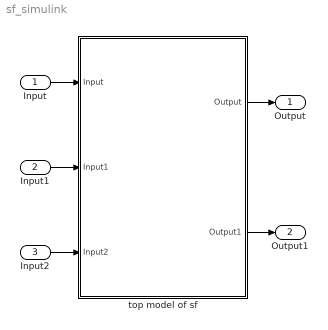
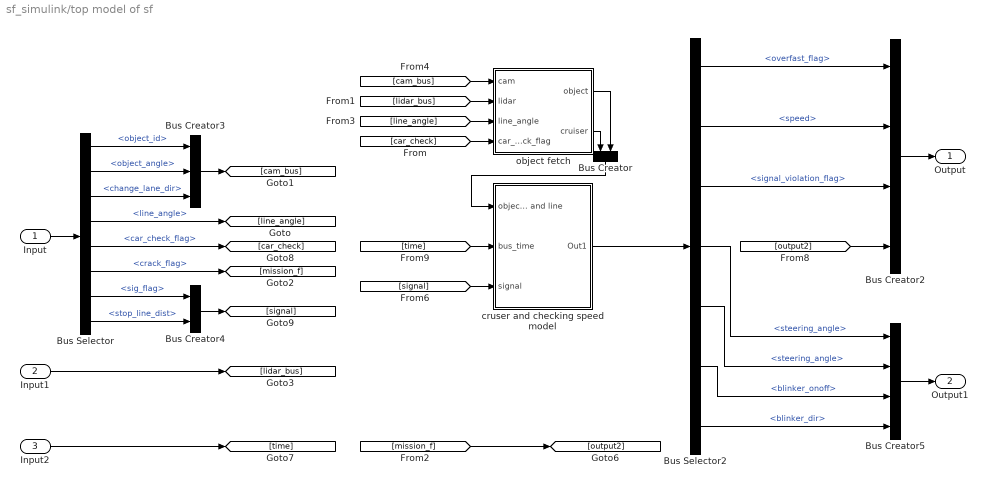
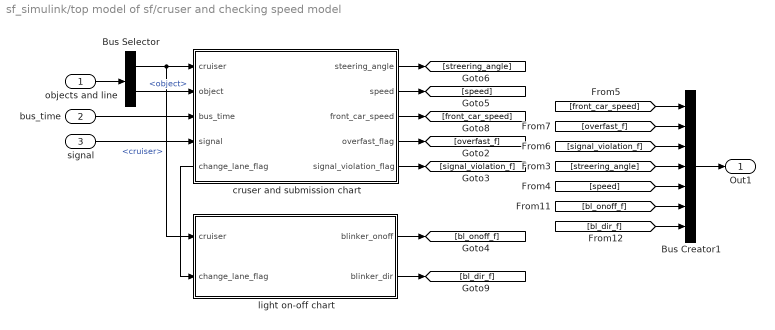
== stateflow chart sf_simulink/top model of sf/object fetch ==
  state cnt = up_count(cnt, limit) [function]
    (default) -> (junction 136)
    (junction 136) -> (junction 125) [order 1] : [cnt < limit] {cnt = cnt + 1;}
    (junction 131) -> (junction 125)
    (junction 125) -> (junction 133)
    (junction 136) -> (junction 131) [order 2]
  state init
    local_angle_cam = -1;
    local_angle_lidar = -1;
  state running
  (default) -> init
  init -> running
  (junction 99) -> running
  (junction 95) -> (junction 99)
  running -> (junction 180) : /* local data qsort */ { local_angle_cam = qsort(cam.object_angle); local_angle_lidar = qsort(lidar.angle); }
  (junction 180) -> (junction 37) : {i = 0; c = 0; l = 0;}
  (junction 227) -> (junction 36) [order 2]
  (junction 36) -> (junction 105) [order 1] : /* each data is bigger than zero, the absolute value of diff between local angles is smaller than three. !!! used data is set minus one !!!  data is existed, what... */ [ local_angle_cam[c] >= 0 && local_angle_lidar[l] >= 0 && ... abs(local_angle_cam[c] - i) < DIFF_ANGLE && ... abs(local_angle_lidar[l] - i) < DIFF_ANGLE && ... (local_angle_cam[c] + local_angle_lidar[l]) / 2 == i ]
  (junction 37) -> (junction 227) [order 1] : [i < 360]
  (junction 227) -> (junction 232) [order 1] : [c >= 10 && l >= 10]
  (junction 36) -> (junction 196) [order 2]
  (junction 105) -> (junction 143) : { each_object.who = 3; each_object.id = search(cam.object_angle, cam.object_id, local_angle_cam[c]); each_object.dist = search(lidar.angle, lidar.dist, local_angle_lidar[l]); object[i] = each_object;  c = up_count(c, 10); l = up_count(l, 10); }
  (junction 39) -> (junction 37)
  (junction 37) -> (junction 40) [order 2] : /* data fetch*/ { cruiser.line_angle = line_angle; cruiser.car_check_flag = car_check_flag; cruiser.change_lane_dir = cam.change_lane_dir; }
  (junction 196) -> (junction 241) [order 1] : [local_angle_cam[c] < i - DIFF_ANGLE && local_angle_cam[c] >= 0] {c = up_count(c, 10);}
  (junction 196) -> (junction 239) [order 2]
  (junction 241) -> (junction 203)
  (junction 203) -> (junction 239)
  (junction 239) -> (junction 207)
  (junction 207) -> (junction 236) [order 1] : [local_angle_lidar[l] < i - DIFF_ANGLE && local_angle_lidar[l] >= 0] {l = up_count(l, 10);}
  (junction 207) -> (junction 232) [order 2]
  (junction 236) -> (junction 205)
  (junction 205) -> (junction 232)
  (junction 232) -> (junction 38) : { each_object.who = 0; each_object.id = 0; each_object.dist = 0; object[i] = each_object; }
  (junction 40) -> (junction 95)
  (junction 38) -> (junction 39) : {i = i + 1;}
  (junction 143) -> (junction 38)
  data: cnt function_input double; limit function_input double; cnt function_output double; x function_input double; y function_output double; x function_input double; y function_input double; ret function_output double; val function_input double; cam input Bus: C_BUS; lidar input Bus: LIDAR; cruiser output Bus: CRUISER; line_angle input; local_angle_cam local double; local_angle_lidar local double; car_check_flag input; c local int8; l local int8; i local int16; object output Bus: OBJECT; each_object local Bus: OBJECT; DIFF_ANGLE constant double =3
  function y = qsort(x):
    | function y = qsort(x)
    | input = zeros(1,10);
    | for n = 1:10
    |     input(n) = x(n);
    | end
    | input = sort(input);
    | for n = 1:10
    |     y(n) = input(n);
    | end
  function ret = search(x, y, val):
    | function ret = search(x, y, val)
    | ind = find(x == val, 1);
    | ret = y(ind(1));

== stateflow chart sf_simulink/top model of sf/cruser and checking speed model/light on-off chart ==
  state init
    blinker_onoff = 0;
    blinker_dir = 0;
  state running
  (default) -> init
  init -> running
  (junction 32) -> running
  (junction 30) -> (junction 32)
  running -> (junction 17)
  (junction 17) -> (junction 19) [order 1] : /* lane change or not */ [change_lane_flag == 1]
  (junction 19) -> (junction 41) [order 1] : [cruiser.change_lane_dir == 1]
  (junction 17) -> (junction 21) [order 2]
  (junction 19) -> (junction 45) [order 2]
  (junction 41) -> (junction 46)
  (junction 21) -> (junction 45) [order 1] : /* turn left */ [cruiser.line_angle > ANGLE_STD + 10]
  (junction 21) -> (junction 35) [order 2]
  (junction 45) -> (junction 49) : {blinker_onoff = 1; blinker_dir = 1;}
  (junction 35) -> (junction 46) [order 1] : /* turn right */ [cruiser.line_angle < ANGLE_STD - 10]
  (junction 35) -> (junction 28) [order 2] : {blinker_onoff = 0;}
  (junction 46) -> (junction 38) : {blinker_onoff = 1; blinker_dir = 0;}
  (junction 28) -> (junction 30)
  (junction 49) -> (junction 28)
  (junction 38) -> (junction 49)
  data: cruiser input Bus: CRUISER; blinker_onoff output uint8; blinker_dir output uint8; change_lane_flag input; ANGLE_STD constant double =90

== stateflow chart sf_simulink/top model of sf/cruser and checking speed model/cruser and submission chart ==
  state signal_processing [function]
    (default) -> (junction 977)
    (junction 977) -> (junction 965) [order 1] : % yellow or red signal  [signal.sig_flag == 1]
    (junction 977) -> (junction 969) [order 2]
    (junction 965) -> (junction 969) [order 2]
    (junction 969) -> (junction 971) : {move_f = 1;}
    (junction 965) -> (junction 970) [order 1] : [signal.stop_line_dist < STOP_DISTANCE] {move_f = 0;}
    (junction 970) -> (junction 971)
    (junction 971) -> (junction 966) : { steering_angle = cruiser.line_angle; save_time = time; time = bus_time.time; }
  state init
    %local
    move_f = 0;
    save_dist = 0;
    save_time = 0;
    time = bus_time.time;
    %output
    steering_angle = cruiser.line_angle;
    speed = 0;
    front_car_speed = 0;
    overfast_flag = 0;
    signal_violation_flag = 0;
    change_lane_flag = 0;
  state normal_running
  state time_reprocessing [function]
    (default) -> (junction 997)
    (junction 997) -> (junction 1001) [order 1] : /* time is mircoseconds. range is 0 ~ 999999*/ [time < save_time] {dt = TIME_UNIT - save_time + time;}
    (junction 997) -> (junction 999) [order 2] : {dt = save_time - time;}
    (junction 1001) -> (junction 1003)
    (junction 1003) -> (junction 999)
    (junction 999) -> (junction 1005) : {dt = dt / TIME_UNIT;}
  state check_speeding [function]
    (default) -> (junction 1058)
    (junction 1058) -> (junction 1059) [order 1] : /* overfast checking */ [front_car_speed > 60] {overfast_flag = 1;}
    (junction 1058) -> (junction 1064) [order 2]
    (junction 1059) -> (junction 1063)
    (junction 1064) -> (junction 1063) : {overfast_flag = 0;}
  state accelerator [function]
    (default) -> (junction 1024) : {speed += EXTRA_SPEED;}
    (junction 1024) -> (junction 1022) : [speed > 50] {speed = 50;}
  state brake [function]
    (default) -> (junction 1030) : {speed -= EXTRA_SPEED;}
    (junction 1030) -> (junction 1027) : [speed < 0] {speed = 0;}
  state change_lane
  state check_signal_violation [function]
    (default) -> (junction 1127)
    (junction 1127) -> (junction 1129) [order 1] : [signal.sig_flag == 1 && each_obj.dist > (signal.stop_line_dist*100)] {signal_violation_flag = 1;}
    (junction 1127) -> (junction 1139) [order 2] : {signal_violation_flag = 0;}
    (junction 1129) -> (junction 1141)
    (junction 1141) -> (junction 1139)
  (default) -> init
  (junction 599) -> normal_running
  init -> normal_running
  (junction 595) -> (junction 599)
  normal_running -> (junction 562) : {signal_processing();}
  (junction 562) -> (junction 564) [order 2] : /* undiscover the car in front */
  (junction 1123) -> (junction 562) : {change_lane_flag = 0;}
  (junction 1114) -> (junction 1116) : {steering_angle = 110;}
  (junction 564) -> (junction 571)
  (junction 562) -> (junction 1066) [order 1] : /* discover the car in front */ [cruiser.car_check_flag == 1 && nonzero_front(object) != 0] { car_num = front_ele(object); save_dist = each_obj.dist; each_obj = object[car_num];  check_signal_violation();  time_reprocessing(); relative_velovity = (each_obj.dist - save_dist) / dt;  /* speed unit and relative_velovity unit is centimeters per seconds */ front_car_speed = speed + relative_velovity; check_speeding(); }
  (junction 1103) -> (junction 1123) [order 2]
  (junction 1112) -> (junction 1114) [order 2]
  (junction 1116) -> (junction 1108)
  (junction 1103) -> (junction 1112) [order 1] : [dt <= 2]
  (junction 1112) -> (junction 1108) [order 1] : [change_lane_dir == 1] {steering_angle = 70;}
  change_lane -> (junction 1103) : {signal_processing(); time_reprocessing();}
  (junction 1108) -> (junction 1109)
  (junction 1066) -> change_lane [order 1] : /* the front car is getting closer If the front car is already close, can't change lane */ [relative_velovity < 0 && each_obj.dist > 100] { change_lane_dir = cruiser.change_lane_dir; change_lane_flag = 1; speed = 25; }
  (junction 1136) -> change_lane
  (junction 1109) -> (junction 1136) [order 1] : [each_obj.dist > 50] {speed = 25;}
  (junction 1066) -> (junction 575) [order 2]
  (junction 1133) -> (junction 1136)
  (junction 1109) -> (junction 1131) [order 2]
  (junction 571) -> (junction 1012) [order 1] : /* signal light color isn't yellow or red */ [signal.sig_flag == 0]
  (junction 1012) -> (junction 1015) : {accelerator();}
  (junction 571) -> (junction 1031) [order 2]
  (junction 1131) -> (junction 1133) : {brake();}
  (junction 1031) -> (junction 1035) [order 1] : /* stop line is close */ [signal.stop_line_dist < STOP_DISTANCE]
  (junction 1035) -> (junction 1045)
  (junction 1031) -> (junction 629) [order 2]
  (junction 575) -> (junction 1045) [order 1] : /* the front car is close  if it insisted accelerate*/ [each_obj.dist < 50]
  (junction 1045) -> (junction 1037) : {brake();}
  (junction 575) -> (junction 1077) [order 2]
  (junction 1015) -> (junction 1037)
  (junction 1037) -> (junction 629)
  (junction 629) -> (junction 1077)
  (junction 1077) -> (junction 595)
  data: x function_input Bus: OBJECT; y function_output double; x function_input Bus: OBJECT; y function_output double; signal_violation_flag output uint8; cruiser input Bus: CRUISER; object input Bus: OBJECT; steering_angle output uint8; speed output uint8; bus_time input Bus: CORE; overfast_flag output uint8; front_car_speed output double; time local double; save_time local double; save_dist local double; signal input Bus: SIGNAL; move_f local double; car_num local double; each_obj local Bus: OBJECT; relative_velovity local double; dt local double; TIME_UNIT constant double =1000000; EXTRA_SPEED constant double =10; STOP_DISTANCE constant double =0.5; change_lane_dir local uint8; change_lane_flag output uint8
  function y = nonzero_front(x):
    | function y = nonzero_front(x)
    | id1 = zeros(1,10);
    | id2 = zeros(1,10);
    | for n = 1:10
    |     id1(n) = x(n).id;
    |     id2(n) = x(n + 350).id;
    | end
    | y = nnz(id1) + nnz(id2);
  function y = front_ele(x):
    | function y = front_ele(x)
    | id = zeros(1,360);
    | for n = 1:360
    |     id(n) = x(n).id;
    | end
    | f1 = find(id(1:10));
    | f2 = find(id(351:360));
    | mn = 0;   mx = 0;
    | if size(f1) > 0
    |     f1 = sort(f1);
    |     mn = min(f1);
    | end
    | if size(f2) > 0
    |     f2 = sort(f2);
    |     mx = max(f2); 
    | end
    | if mn == 0 || mx == 0
    |     if mn ~= 0
    |         y = mn - 1;
    |     else
    |         y = mx - 1;  
    |     end
    | elseif mn > abs(mx - 360)
    |     y = mx - 1;
    | else
    |     y = mn - 1;
    | end

/*
 * Academic License - for use in teaching, academic research, and meeting
 * course requirements at degree granting institutions only.  Not for
 * government, commercial, or other organizational use.
 *
 * File: sf_simulink.c
 *
 * Code generated for Simulink model 'sf_simulink'.
 *
 * Model version                  : 1.592
 * Simulink Coder version         : 9.3 (R2020a) 18-Nov-2019
 * C/C++ source code generated on : Fri Sep 30 20:01:57 2022
 *
 * Target selection: ert.tlc
 * Embedded hardware selection: Intel->x86-64 (Linux 64)
 * Emulation hardware selection:
 *    Differs from embedded hardware (MATLAB Host)
 * Code generation objectives: Unspecified
 * Validation result: Not run
 */

#include "sf_simulink.h"
#include "sf_simulink_private.h"

/* Named constants for Chart: '<S2>/cruser and submission chart' */
#define sf_simulink_EXTRA_SPEED        (10.0)
#define sf_simulink_IN_NO_ACTIVE_CHILD ((uint8_T)0U)
#define sf_simulink_IN_change_lane     ((uint8_T)1U)
#define sf_simulink_IN_init            ((uint8_T)2U)
#define sf_simulink_IN_normal_running  ((uint8_T)3U)
#define sf_simulink_STOP_DISTANCE      (0.5)
#define sf_simulink_TIME_UNIT          (1.0E+6)

/* Named constants for Chart: '<S2>/light on-off chart' */
#define sf_simulink_IN_init_l          ((uint8_T)1U)
#define sf_simulink_IN_running         ((uint8_T)2U)

/* Named constants for Chart: '<S1>/object fetch' */
#define sf_simulink_DIFF_ANGLE         (3.0)

/* Forward declaration for local functions */
static void sf_simulink_merge_m(int32_T idx[10], real_T x[10], int32_T offset,
  int32_T np, int32_T nq, int32_T iwork[10], real_T xwork[10]);
static void sf_simulink_sort_k(real_T x[10]);
static void sf_simulink_qsort(const real_T x[10], real_T y[10]);
static void sf_simulink_signal_processing(const CORE
  *BusConversion_InsertedFor_cru_l, B_sf_simulink_T *sf_simulink_B,
  DW_sf_simulink_T *sf_simulink_DW);
static void sf_simulink_time_reprocessing(DW_sf_simulink_T *sf_simulink_DW);
static real_T sf_simulink_nonzero_front(const OBJECT x[360]);
static void sf_simulink_merge(int32_T idx_data[], real_T x_data[], int32_T np,
  int32_T nq, int32_T iwork_data[], real_T xwork_data[]);
static void sf_simulink_sort(real_T x_data[], int32_T x_size[2]);
static real_T sf_simulink_front_ele(const OBJECT x[360]);
static void sf_simulink_accelerator(B_sf_simulink_T *sf_simulink_B);
static void sf_simulink_brake(B_sf_simulink_T *sf_simulink_B);
static void sf_simul_check_signal_violation(const SIGNAL
  *BusConversion_InsertedFor_cruse, B_sf_simulink_T *sf_simulink_B,
  DW_sf_simulink_T *sf_simulink_DW);
static void sf_simulink_up_count(real_T *cnt, real_T limit);
static void sf_simulink_check_speeding(B_sf_simulink_T *sf_simulink_B);
static real_T sf_simulink_search(const real_T x[10], const real_T y[10], real_T
  val);

/* Function for Chart: '<S1>/object fetch' */
static void sf_simulink_merge_m(int32_T idx[10], real_T x[10], int32_T offset,
  int32_T np, int32_T nq, int32_T iwork[10], real_T xwork[10])
{
  int32_T p;
  int32_T q;
  int32_T iout;
  int32_T offset1;
  int32_T exitg1;
  if (nq != 0) {
    offset1 = np + nq;
    for (p = 0; p < offset1; p++) {
      q = offset + p;
      iwork[p] = idx[q];
      xwork[p] = x[q];
    }

    p = 0;
    q = np;
    iout = offset - 1;
    do {
      exitg1 = 0;
      iout++;
      if (xwork[p] <= xwork[q]) {
        idx[iout] = iwork[p];
        x[iout] = xwork[p];
        if (p + 1 < np) {
          p++;
        } else {
          exitg1 = 1;
        }
      } else {
        idx[iout] = iwork[q];
        x[iout] = xwork[q];
        if (q + 1 < offset1) {
          q++;
        } else {
          offset1 = iout - p;
          while (p + 1 <= np) {
            q = (offset1 + p) + 1;
            idx[q] = iwork[p];
            x[q] = xwork[p];
            p++;
          }

          exitg1 = 1;
        }
      }
    } while (exitg1 == 0);
  }
}

/* Function for Chart: '<S1>/object fetch' */
static void sf_simulink_sort_k(real_T x[10])
{
  int32_T idx[10];
  int32_T nNaNs;
  real_T xwork[10];
  int32_T iwork[10];
  real_T x4[4];
  int8_T idx4[4];
  int32_T ib;
  int32_T m;
  int8_T perm[4];
  int32_T i1;
  int32_T i2;
  int32_T i3;
  int32_T i4;
  real_T tmp;
  real_T tmp_0;
  x4[0] = 0.0;
  idx4[0] = 0;
  x4[1] = 0.0;
  idx4[1] = 0;
  x4[2] = 0.0;
  idx4[2] = 0;
  x4[3] = 0.0;
  idx4[3] = 0;
  memset(&xwork[0], 0, 10U * sizeof(real_T));
  for (m = 0; m < 10; m++) {
    idx[m] = 0;
  }

  nNaNs = 0;
  ib = 0;
  for (m = 0; m < 10; m++) {
    if (rtIsNaN(x[m])) {
      idx[9 - nNaNs] = m + 1;
      xwork[9 - nNaNs] = x[m];
      nNaNs++;
    } else {
      ib++;
      idx4[ib - 1] = (int8_T)(m + 1);
      x4[ib - 1] = x[m];
      if (ib == 4) {
        ib = m - nNaNs;
        if (x4[0] <= x4[1]) {
          i1 = 1;
          i2 = 2;
        } else {
          i1 = 2;
          i2 = 1;
        }

        if (x4[2] <= x4[3]) {
          i3 = 3;
          i4 = 4;
        } else {
          i3 = 4;
          i4 = 3;
        }

        tmp = x4[i1 - 1];
        tmp_0 = x4[i3 - 1];
        if (tmp <= tmp_0) {
          tmp = x4[i2 - 1];
          if (tmp <= tmp_0) {
            perm[0] = (int8_T)i1;
            perm[1] = (int8_T)i2;
            perm[2] = (int8_T)i3;
            perm[3] = (int8_T)i4;
          } else if (tmp <= x4[i4 - 1]) {
            perm[0] = (int8_T)i1;
            perm[1] = (int8_T)i3;
            perm[2] = (int8_T)i2;
            perm[3] = (int8_T)i4;
          } else {
            perm[0] = (int8_T)i1;
            perm[1] = (int8_T)i3;
            perm[2] = (int8_T)i4;
            perm[3] = (int8_T)i2;
          }
        } else {
          tmp_0 = x4[i4 - 1];
          if (tmp <= tmp_0) {
            if (x4[i2 - 1] <= tmp_0) {
              perm[0] = (int8_T)i3;
              perm[1] = (int8_T)i1;
              perm[2] = (int8_T)i2;
              perm[3] = (int8_T)i4;
            } else {
              perm[0] = (int8_T)i3;
              perm[1] = (int8_T)i1;
              perm[2] = (int8_T)i4;
              perm[3] = (int8_T)i2;
            }
          } else {
            perm[0] = (int8_T)i3;
            perm[1] = (int8_T)i4;
            perm[2] = (int8_T)i1;
            perm[3] = (int8_T)i2;
          }
        }

        i1 = perm[0] - 1;
        idx[ib - 3] = idx4[i1];
        i2 = perm[1] - 1;
        idx[ib - 2] = idx4[i2];
        i3 = perm[2] - 1;
        idx[ib - 1] = idx4[i3];
        i4 = perm[3] - 1;
        idx[ib] = idx4[i4];
        x[ib - 3] = x4[i1];
        x[ib - 2] = x4[i2];
        x[ib - 1] = x4[i3];
        x[ib] = x4[i4];
        ib = 0;
      }
    }
  }

  if (ib > 0) {
    perm[1] = 0;
    perm[2] = 0;
    perm[3] = 0;
    if (ib == 1) {
      perm[0] = 1;
    } else if (ib == 2) {
      if (x4[0] <= x4[1]) {
        perm[0] = 1;
        perm[1] = 2;
      } else {
        perm[0] = 2;
        perm[1] = 1;
      }
    } else if (x4[0] <= x4[1]) {
      if (x4[1] <= x4[2]) {
        perm[0] = 1;
        perm[1] = 2;
        perm[2] = 3;
      } else if (x4[0] <= x4[2]) {
        perm[0] = 1;
        perm[1] = 3;
        perm[2] = 2;
      } else {
        perm[0] = 3;
        perm[1] = 1;
        perm[2] = 2;
      }
    } else if (x4[0] <= x4[2]) {
      perm[0] = 2;
      perm[1] = 1;
      perm[2] = 3;
    } else if (x4[1] <= x4[2]) {
      perm[0] = 2;
      perm[1] = 3;
      perm[2] = 1;
    } else {
      perm[0] = 3;
      perm[1] = 2;
      perm[2] = 1;
    }

    for (m = 0; m < ib; m++) {
      i1 = perm[m] - 1;
      i2 = ((m - nNaNs) - ib) + 10;
      idx[i2] = idx4[i1];
      x[i2] = x4[i1];
    }
  }

  m = (nNaNs >> 1) + 10;
  for (ib = 10; ib - 10 <= m - 11; ib++) {
    i1 = ib - nNaNs;
    i2 = idx[i1];
    idx[i1] = idx[19 - ib];
    idx[19 - ib] = i2;
    x[i1] = xwork[19 - ib];
    x[19 - ib] = xwork[i1];
  }

  if ((nNaNs & 1U) != 0U) {
    m -= nNaNs;
    x[m] = xwork[m];
  }

  if (10 - nNaNs > 1) {
    for (m = 0; m < 10; m++) {
      iwork[m] = 0;
    }

    ib = (10 - nNaNs) >> 2;
    m = 4;
    while (ib > 1) {
      if ((ib & 1U) != 0U) {
        ib--;
        i1 = m * ib;
        i2 = 10 - (nNaNs + i1);
        if (i2 > m) {
          sf_simulink_merge_m(idx, x, i1, m, i2 - m, iwork, xwork);
        }
      }

      i1 = m << 1;
      ib >>= 1;
      for (i2 = 0; i2 < ib; i2++) {
        sf_simulink_merge_m(idx, x, i2 * i1, m, m, iwork, xwork);
      }

      m = i1;
    }

    if (10 - nNaNs > m) {
      sf_simulink_merge_m(idx, x, 0, m, 10 - (nNaNs + m), iwork, xwork);
    }
  }
}

/* Function for Chart: '<S1>/object fetch' */
static void sf_simulink_qsort(const real_T x[10], real_T y[10])
{
  memcpy(&y[0], &x[0], 10U * sizeof(real_T));
  sf_simulink_sort_k(y);
}

/* Function for Chart: '<S2>/cruser and submission chart' */
static void sf_simulink_signal_processing(const CORE
  *BusConversion_InsertedFor_cru_l, B_sf_simulink_T *sf_simulink_B,
  DW_sf_simulink_T *sf_simulink_DW)
{
  /*  yellow or red signal  */
  sf_simulink_B->steering_angle = sf_simulink_B->cruiser.line_angle;
  sf_simulink_DW->save_time = sf_simulink_DW->time;
  sf_simulink_DW->time = BusConversion_InsertedFor_cru_l->time;
}

/* Function for Chart: '<S2>/cruser and submission chart' */
static void sf_simulink_time_reprocessing(DW_sf_simulink_T *sf_simulink_DW)
{
  /*  time is mircoseconds.
     range is 0 ~ 999999 */
  if (sf_simulink_DW->time < sf_simulink_DW->save_time) {
    sf_simulink_DW->dt = (sf_simulink_TIME_UNIT - sf_simulink_DW->save_time) +
      sf_simulink_DW->time;
  } else {
    sf_simulink_DW->dt = sf_simulink_DW->save_time - sf_simulink_DW->time;
  }

  sf_simulink_DW->dt /= sf_simulink_TIME_UNIT;
}

/* Function for Chart: '<S2>/cruser and submission chart' */
static real_T sf_simulink_nonzero_front(const OBJECT x[360])
{
  int32_T n;
  int32_T b_n;
  int32_T c_n;
  b_n = 0;
  c_n = 0;
  for (n = 0; n < 10; n++) {
    if (x[n].id != 0U) {
      b_n++;
    }

    if (x[n + 350].id != 0U) {
      c_n++;
    }
  }

  return (real_T)b_n + (real_T)c_n;
}

/* Function for Chart: '<S2>/cruser and submission chart' */
static void sf_simulink_merge(int32_T idx_data[], real_T x_data[], int32_T np,
  int32_T nq, int32_T iwork_data[], real_T xwork_data[])
{
  int32_T p;
  int32_T q;
  int32_T iout;
  int32_T offset1;
  int32_T exitg1;
  if ((np != 0) && (nq != 0)) {
    offset1 = np + nq;
    for (p = 0; p < offset1; p++) {
      iwork_data[p] = idx_data[p];
      xwork_data[p] = x_data[p];
    }

    p = 0;
    q = np;
    iout = -1;
    do {
      exitg1 = 0;
      iout++;
      if (xwork_data[p] <= xwork_data[q]) {
        idx_data[iout] = iwork_data[p];
        x_data[iout] = xwork_data[p];
        if (p + 1 < np) {
          p++;
        } else {
          exitg1 = 1;
        }
      } else {
        idx_data[iout] = iwork_data[q];
        x_data[iout] = xwork_data[q];
        if (q + 1 < offset1) {
          q++;
        } else {
          offset1 = iout - p;
          while (p + 1 <= np) {
            q = (offset1 + p) + 1;
            idx_data[q] = iwork_data[p];
            x_data[q] = xwork_data[p];
            p++;
          }

          exitg1 = 1;
        }
      }
    } while (exitg1 == 0);
  }
}

/* Function for Chart: '<S2>/cruser and submission chart' */
static void sf_simulink_sort(real_T x_data[], int32_T x_size[2])
{
  int32_T idx_data[10];
  real_T b_x_data[10];
  int32_T iwork_data[10];
  real_T xwork_data[10];
  int32_T n;
  real_T x4[4];
  int8_T idx4[4];
  int32_T ib;
  int8_T perm[4];
  int32_T bLen;
  int32_T i1;
  int32_T i2;
  int32_T i4;
  int32_T b_x_size[2];
  real_T tmp;
  real_T tmp_0;
  if (x_size[1] != 0) {
    b_x_size[1] = x_size[1];
    n = x_size[0] * x_size[1] - 1;
    if (0 <= n) {
      memcpy(&b_x_data[0], &x_data[0], (n + 1) * sizeof(real_T));
    }

    n = x_size[1] - 1;
    if (0 <= n) {
      memset(&idx_data[0], 0, (n + 1) * sizeof(int32_T));
    }

    n = x_size[1] - 1;
    x4[0] = 0.0;
    idx4[0] = 0;
    x4[1] = 0.0;
    idx4[1] = 0;
    x4[2] = 0.0;
    idx4[2] = 0;
    x4[3] = 0.0;
    idx4[3] = 0;
    ib = 0;
    for (bLen = 0; bLen <= n; bLen++) {
      ib++;
      idx4[ib - 1] = (int8_T)(bLen + 1);
      x4[ib - 1] = b_x_data[bLen];
      if (ib == 4) {
        if (x4[0] <= x4[1]) {
          i1 = 1;
          i2 = 2;
        } else {
          i1 = 2;
          i2 = 1;
        }

        if (x4[2] <= x4[3]) {
          ib = 3;
          i4 = 4;
        } else {
          ib = 4;
          i4 = 3;
        }

        tmp = x4[i1 - 1];
        tmp_0 = x4[ib - 1];
        if (tmp <= tmp_0) {
          tmp = x4[i2 - 1];
          if (tmp <= tmp_0) {
            perm[0] = (int8_T)i1;
            perm[1] = (int8_T)i2;
            perm[2] = (int8_T)ib;
            perm[3] = (int8_T)i4;
          } else if (tmp <= x4[i4 - 1]) {
            perm[0] = (int8_T)i1;
            perm[1] = (int8_T)ib;
            perm[2] = (int8_T)i2;
            perm[3] = (int8_T)i4;
          } else {
            perm[0] = (int8_T)i1;
            perm[1] = (int8_T)ib;
            perm[2] = (int8_T)i4;
            perm[3] = (int8_T)i2;
          }
        } else {
          tmp_0 = x4[i4 - 1];
          if (tmp <= tmp_0) {
            if (x4[i2 - 1] <= tmp_0) {
              perm[0] = (int8_T)ib;
              perm[1] = (int8_T)i1;
              perm[2] = (int8_T)i2;
              perm[3] = (int8_T)i4;
            } else {
              perm[0] = (int8_T)ib;
              perm[1] = (int8_T)i1;
              perm[2] = (int8_T)i4;
              perm[3] = (int8_T)i2;
            }
          } else {
            perm[0] = (int8_T)ib;
            perm[1] = (int8_T)i4;
            perm[2] = (int8_T)i1;
            perm[3] = (int8_T)i2;
          }
        }

        i1 = perm[0] - 1;
        idx_data[bLen - 3] = idx4[i1];
        i2 = perm[1] - 1;
        idx_data[bLen - 2] = idx4[i2];
        ib = perm[2] - 1;
        idx_data[bLen - 1] = idx4[ib];
        i4 = perm[3] - 1;
        idx_data[bLen] = idx4[i4];
        b_x_data[bLen - 3] = x4[i1];
        b_x_data[bLen - 2] = x4[i2];
        b_x_data[bLen - 1] = x4[ib];
        b_x_data[bLen] = x4[i4];
        ib = 0;
      }
    }

    if (ib > 0) {
      perm[1] = 0;
      perm[2] = 0;
      perm[3] = 0;
      if (ib == 1) {
        perm[0] = 1;
      } else if (ib == 2) {
        if (x4[0] <= x4[1]) {
          perm[0] = 1;
          perm[1] = 2;
        } else {
          perm[0] = 2;
          perm[1] = 1;
        }
      } else if (x4[0] <= x4[1]) {
        if (x4[1] <= x4[2]) {
          perm[0] = 1;
          perm[1] = 2;
          perm[2] = 3;
        } else if (x4[0] <= x4[2]) {
          perm[0] = 1;
          perm[1] = 3;
          perm[2] = 2;
        } else {
          perm[0] = 3;
          perm[1] = 1;
          perm[2] = 2;
        }
      } else if (x4[0] <= x4[2]) {
        perm[0] = 2;
        perm[1] = 1;
        perm[2] = 3;
      } else if (x4[1] <= x4[2]) {
        perm[0] = 2;
        perm[1] = 3;
        perm[2] = 1;
      } else {
        perm[0] = 3;
        perm[1] = 2;
        perm[2] = 1;
      }

      for (bLen = 0; bLen < ib; bLen++) {
        i1 = perm[bLen] - 1;
        i2 = ((n - ib) + bLen) + 1;
        idx_data[i2] = idx4[i1];
        b_x_data[i2] = x4[i1];
      }
    }

    if (x_size[1] > 1) {
      n = (int8_T)x_size[1];
      if (0 <= n - 1) {
        memset(&xwork_data[0], 0, n * sizeof(real_T));
      }

      n = (int8_T)x_size[1];
      if (0 <= n - 1) {
        memset(&iwork_data[0], 0, n * sizeof(int32_T));
      }

      n = x_size[1] >> 2;
      bLen = 4;
      while (n > 1) {
        sf_simulink_merge(idx_data, b_x_data, bLen, bLen, iwork_data, xwork_data);
        bLen <<= 1;
        n = 1;
      }

      if (x_size[1] > bLen) {
        sf_simulink_merge(idx_data, b_x_data, bLen, x_size[1] - bLen, iwork_data,
                          xwork_data);
      }
    }

    x_size[0] = 1;
    x_size[1] = b_x_size[1];
    n = b_x_size[1];
    if (0 <= n - 1) {
      memcpy(&x_data[0], &b_x_data[0], n * sizeof(real_T));
    }
  }
}

/* Function for Chart: '<S2>/cruser and submission chart' */
static real_T sf_simulink_front_ele(const OBJECT x[360])
{
  real_T y;
  uint32_T id[360];
  real_T f1_data[10];
  real_T f2_data[10];
  real_T mn;
  real_T mx;
  int8_T ii_data[10];
  boolean_T b_y;
  boolean_T b_x[2];
  int32_T b_ii;
  int32_T b_idx;
  int32_T i;
  int32_T f1_size[2];
  int32_T f2_size[2];
  boolean_T exitg1;
  for (b_idx = 0; b_idx < 360; b_idx++) {
    id[b_idx] = x[b_idx].id;
  }

  b_idx = 0;
  b_ii = 0;
  exitg1 = false;
  while ((!exitg1) && (b_ii < 10)) {
    if (id[b_ii] != 0U) {
      b_idx++;
      ii_data[b_idx - 1] = (int8_T)(b_ii + 1);
      if (b_idx >= 10) {
        exitg1 = true;
      } else {
        b_ii++;
      }
    } else {
      b_ii++;
    }
  }

  if (1 > b_idx) {
    b_idx = 0;
  }

  f1_size[0] = 1;
  f1_size[1] = b_idx;
  b_ii = b_idx - 1;
  for (i = 0; i <= b_ii; i++) {
    f1_data[i] = ii_data[i];
  }

  b_idx = 0;
  b_ii = 0;
  exitg1 = false;
  while ((!exitg1) && (b_ii < 10)) {
    if (id[b_ii + 350] != 0U) {
      b_idx++;
      ii_data[b_idx - 1] = (int8_T)(b_ii + 1);
      if (b_idx >= 10) {
        exitg1 = true;
      } else {
        b_ii++;
      }
    } else {
      b_ii++;
    }
  }

  if (1 > b_idx) {
    b_idx = 0;
  }

  f2_size[0] = 1;
  f2_size[1] = b_idx;
  b_ii = b_idx - 1;
  for (i = 0; i <= b_ii; i++) {
    f2_data[i] = ii_data[i];
  }

  mn = 0.0;
  mx = 0.0;
  b_x[0] = true;
  b_x[1] = (f1_size[1] > 0);
  b_y = true;
  b_ii = 0;
  exitg1 = false;
  while ((!exitg1) && (b_ii < 2)) {
    if (!b_x[b_ii]) {
      b_y = false;
      exitg1 = true;
    } else {
      b_ii++;
    }
  }

  if (b_y) {
    sf_simulink_sort(f1_data, f1_size);
    if (f1_size[1] <= 2) {
      if (f1_size[1] == 1) {
        mn = f1_data[0];
      } else if (f1_data[0] > f1_data[1]) {
        mn = f1_data[1];
      } else {
        mn = f1_data[0];
      }
    } else {
      mn = f1_data[0];
      for (b_ii = 1; b_ii < f1_size[1]; b_ii++) {
        if (mn > f1_data[b_ii]) {
          mn = f1_data[b_ii];
        }
      }
    }
  }

  b_x[0] = true;
  b_x[1] = (b_idx > 0);
  b_y = true;
  b_idx = 0;
  exitg1 = false;
  while ((!exitg1) && (b_idx < 2)) {
    if (!b_x[b_idx]) {
      b_y = false;
      exitg1 = true;
    } else {
      b_idx++;
    }
  }

  if (b_y) {
    sf_simulink_sort(f2_data, f2_size);
    if (f2_size[1] <= 2) {
      if (f2_size[1] == 1) {
        mx = f2_data[0];
      } else if (f2_data[0] < f2_data[1]) {
        mx = f2_data[1];
      } else {
        mx = f2_data[0];
      }
    } else {
      mx = f2_data[0];
      for (b_idx = 1; b_idx < f2_size[1]; b_idx++) {
        if (mx < f2_data[b_idx]) {
          mx = f2_data[b_idx];
        }
      }
    }
  }

  if ((mn == 0.0) || (mx == 0.0)) {
    if (mn != 0.0) {
      y = mn - 1.0;
    } else {
      y = mx - 1.0;
    }
  } else {
    y = mn - 1.0;
  }

  return y;
}

/* Function for Chart: '<S2>/cruser and submission chart' */
static void sf_simulink_accelerator(B_sf_simulink_T *sf_simulink_B)
{
  int32_T tmp;
  tmp = sf_simulink_B->speed + (int32_T)sf_simulink_EXTRA_SPEED;
  if (tmp < 256) {
    sf_simulink_B->speed = (uint8_T)tmp;
  } else {
    sf_simulink_B->speed = MAX_uint8_T;
  }

  if (sf_simulink_B->speed > 50) {
    sf_simulink_B->speed = 50U;
  }
}

/* Function for Chart: '<S2>/cruser and submission chart' */
static void sf_simulink_brake(B_sf_simulink_T *sf_simulink_B)
{
  int32_T tmp;
  tmp = sf_simulink_B->speed - (int32_T)sf_simulink_EXTRA_SPEED;
  if (tmp >= 0) {
    sf_simulink_B->speed = (uint8_T)tmp;
  } else {
    sf_simulink_B->speed = 0U;
  }
}

/* Function for Chart: '<S2>/cruser and submission chart' */
static void sf_simul_check_signal_violation(const SIGNAL
  *BusConversion_InsertedFor_cruse, B_sf_simulink_T *sf_simulink_B,
  DW_sf_simulink_T *sf_simulink_DW)
{
  sf_simulink_B->signal_violation_flag = (uint8_T)
    ((BusConversion_InsertedFor_cruse->sig_flag == 1) &&
     (sf_simulink_DW->each_obj.dist >
      BusConversion_InsertedFor_cruse->stop_line_dist * 100.0));
}

/* Function for Chart: '<S1>/object fetch' */
static void sf_simulink_up_count(real_T *cnt, real_T limit)
{
  if (*cnt < limit) {
    (*cnt)++;
  }
}

/* Function for Chart: '<S2>/cruser and submission chart' */
static void sf_simulink_check_speeding(B_sf_simulink_T *sf_simulink_B)
{
  /*  overfast checking  */
  sf_simulink_B->overfast_flag = (uint8_T)(sf_simulink_B->front_car_speed > 60.0);
}

/* Function for Chart: '<S1>/object fetch' */
static real_T sf_simulink_search(const real_T x[10], const real_T y[10], real_T
  val)
{
  int32_T b_ii;
  int8_T ii_data_idx_0;
  boolean_T exitg1;
  b_ii = 0;
  exitg1 = false;
  while ((!exitg1) && (b_ii < 10)) {
    if (x[b_ii] == val) {
      ii_data_idx_0 = (int8_T)(b_ii + 1);
      exitg1 = true;
    } else {
      b_ii++;
    }
  }

  return y[ii_data_idx_0 - 1];
}

/* Model step function */
void sf_simulink_step(RT_MODEL_sf_simulink_T *const sf_simulink_M)
{
  B_sf_simulink_T *sf_simulink_B = ((B_sf_simulink_T *) sf_simulink_M->blockIO);
  DW_sf_simulink_T *sf_simulink_DW = ((DW_sf_simulink_T *) sf_simulink_M->dwork);
  ExtU_sf_simulink_T *sf_simulink_U = (ExtU_sf_simulink_T *)
    sf_simulink_M->inputs;
  ExtY_sf_simulink_T *sf_simulink_Y = (ExtY_sf_simulink_T *)
    sf_simulink_M->outputs;
  real_T local_angle_cam[10];
  real_T local_angle_lidar[10];
  int8_T c;
  int8_T l;
  int16_T i;
  uint32_T save_dist;
  real_T relative_velovity;
  SIGNAL BusConversion_InsertedFor_cruse;
  real_T local_angle_cam_tmp[10];
  real_T local_angle_lidar_tmp[10];
  int32_T i_0;
  real_T tmp[10];
  boolean_T guard1 = false;
  boolean_T guard2 = false;

  /* Chart: '<S1>/object fetch' incorporates:
   *  BusCreator generated from: '<S1>/object fetch'
   *  Inport: '<Root>/Input'
   *  Inport: '<Root>/Input1'
   * */
  if (sf_simulink_DW->is_active_c1_sf_simulink == 0U) {
    sf_simulink_DW->is_active_c1_sf_simulink = 1U;
    sf_simulink_DW->is_c1_sf_simulink = sf_simulink_IN_init_l;
  } else if (sf_simulink_DW->is_c1_sf_simulink == sf_simulink_IN_init_l) {
    sf_simulink_DW->is_c1_sf_simulink = sf_simulink_IN_running;
  } else {
    /* case IN_running: */
    /*  local data qsort  */
    for (i_0 = 0; i_0 < 10; i_0++) {
      local_angle_cam_tmp[i_0] = sf_simulink_U->Input.object_angle[i_0];
      local_angle_lidar_tmp[i_0] = sf_simulink_U->Input1.angle[i_0];
    }

    sf_simulink_qsort(local_angle_cam_tmp, local_angle_cam);
    sf_simulink_qsort(local_angle_lidar_tmp, local_angle_lidar);
    i = 0;
    c = 0;
    l = 0;
    while (i < 360) {
      /* NEW_PATTERN */
      guard1 = false;
      if ((c >= 10) && (l >= 10)) {
        guard1 = true;
      } else {
        /*  each data is bigger than zero,
           the absolute value of diff between local angles is smaller than three.
           !!! used data is set minus one !!!
           data is existed, what...  */
        if ((local_angle_cam[c] >= 0.0) && (local_angle_lidar[l] >= 0.0) &&
            (fabs(local_angle_cam[c] - (real_T)i) < sf_simulink_DIFF_ANGLE) &&
            (fabs(local_angle_lidar[l] - (real_T)i) < sf_simulink_DIFF_ANGLE) &&
            ((local_angle_cam[c] + local_angle_lidar[l]) / 2.0 == i)) {
          sf_simulink_DW->each_object.who = 3U;
          for (i_0 = 0; i_0 < 10; i_0++) {
            tmp[i_0] = sf_simulink_U->Input.object_id[i_0];
          }

          relative_velovity = sf_simulink_search(local_angle_cam_tmp, tmp,
            local_angle_cam[c]);
          if (relative_velovity < 4.294967296E+9) {
            if (relative_velovity >= 0.0) {
              sf_simulink_DW->each_object.id = (uint32_T)relative_velovity;
            } else {
              sf_simulink_DW->each_object.id = 0U;
            }
          } else {
            sf_simulink_DW->each_object.id = MAX_uint32_T;
          }

          for (i_0 = 0; i_0 < 10; i_0++) {
            tmp[i_0] = sf_simulink_U->Input1.dist[i_0];
          }

          relative_velovity = sf_simulink_search(local_angle_lidar_tmp, tmp,
            local_angle_lidar[l]);
          if (relative_velovity < 4.294967296E+9) {
            if (relative_velovity >= 0.0) {
              sf_simulink_DW->each_object.dist = (uint32_T)relative_velovity;
            } else {
              sf_simulink_DW->each_object.dist = 0U;
            }
          } else {
            sf_simulink_DW->each_object.dist = MAX_uint32_T;
          }

          sf_simulink_B->object[i] = sf_simulink_DW->each_object;
          relative_velovity = c;
          sf_simulink_up_count(&relative_velovity, 10.0);
          if (relative_velovity < 128.0) {
            if (relative_velovity >= -128.0) {
              c = (int8_T)relative_velovity;
            } else {
              c = MIN_int8_T;
            }
          } else {
            c = MAX_int8_T;
          }

          relative_velovity = l;
          sf_simulink_up_count(&relative_velovity, 10.0);
          if (relative_velovity < 128.0) {
            if (relative_velovity >= -128.0) {
              l = (int8_T)relative_velovity;
            } else {
              l = MIN_int8_T;
            }
          } else {
            l = MAX_int8_T;
          }
        } else {
          if ((local_angle_cam[c] < (real_T)i - sf_simulink_DIFF_ANGLE) &&
              (local_angle_cam[c] >= 0.0)) {
            relative_velovity = c;
            sf_simulink_up_count(&relative_velovity, 10.0);
            if (relative_velovity < 128.0) {
              if (relative_velovity >= -128.0) {
                c = (int8_T)relative_velovity;
              } else {
                c = MIN_int8_T;
              }
            } else {
              c = MAX_int8_T;
            }
          }

          if ((local_angle_lidar[l] < (real_T)i - sf_simulink_DIFF_ANGLE) &&
              (local_angle_lidar[l] >= 0.0)) {
            relative_velovity = l;
            sf_simulink_up_count(&relative_velovity, 10.0);
            if (relative_velovity < 128.0) {
              if (relative_velovity >= -128.0) {
                l = (int8_T)relative_velovity;
              } else {
                l = MIN_int8_T;
              }
            } else {
              l = MAX_int8_T;
            }
          }

          guard1 = true;
        }
      }

      if (guard1) {
        sf_simulink_DW->each_object.who = 0U;
        sf_simulink_DW->each_object.id = 0U;
        sf_simulink_DW->each_object.dist = 0U;
        sf_simulink_B->object[i] = sf_simulink_DW->each_object;
      }

      i++;
    }

    /*  data fetch */
    sf_simulink_B->cruiser.line_angle = sf_simulink_U->Input.line_angle;
    sf_simulink_B->cruiser.car_check_flag = sf_simulink_U->Input.car_check_flag;
    sf_simulink_B->cruiser.change_lane_dir =
      sf_simulink_U->Input.change_lane_dir;
    sf_simulink_DW->is_c1_sf_simulink = sf_simulink_IN_running;
  }

  /* End of Chart: '<S1>/object fetch' */

  /* BusCreator generated from: '<S2>/cruser and submission chart' incorporates:
   *  Inport: '<Root>/Input'
   */
  BusConversion_InsertedFor_cruse.sig_flag = sf_simulink_U->Input.sig_flag;
  BusConversion_InsertedFor_cruse.stop_line_dist =
    sf_simulink_U->Input.stop_line_dist;

  /* Chart: '<S2>/cruser and submission chart' incorporates:
   *  Inport: '<Root>/Input2'
   */
  if (sf_simulink_DW->is_active_c3_sf_simulink == 0U) {
    sf_simulink_DW->is_active_c3_sf_simulink = 1U;
    sf_simulink_DW->is_c3_sf_simulink = sf_simulink_IN_init;

    /* local */
    sf_simulink_DW->save_time = 0.0;
    sf_simulink_DW->time = sf_simulink_U->Input2.time;

    /* output */
    sf_simulink_B->steering_angle = sf_simulink_B->cruiser.line_angle;
    sf_simulink_B->speed = 0U;
    sf_simulink_B->front_car_speed = 0.0;
    sf_simulink_B->overfast_flag = 0U;
    sf_simulink_B->signal_violation_flag = 0U;
    sf_simulink_B->change_lane_flag = 0U;
  } else {
    guard1 = false;
    guard2 = false;
    switch (sf_simulink_DW->is_c3_sf_simulink) {
     case sf_simulink_IN_change_lane:
      sf_simulink_signal_processing(&sf_simulink_U->Input2, sf_simulink_B,
        sf_simulink_DW);
      sf_simulink_time_reprocessing(sf_simulink_DW);
      if (sf_simulink_DW->dt <= 2.0) {
        if (sf_simulink_DW->change_lane_dir == 1) {
          sf_simulink_B->steering_angle = 70U;
        } else {
          sf_simulink_B->steering_angle = 110U;
        }

        if (sf_simulink_DW->each_obj.dist > 50U) {
          sf_simulink_B->speed = 25U;
        } else {
          sf_simulink_brake(sf_simulink_B);
        }

        sf_simulink_DW->is_c3_sf_simulink = sf_simulink_IN_change_lane;
      } else {
        sf_simulink_B->change_lane_flag = 0U;

        /*  discover the car in front  */
        if ((sf_simulink_B->cruiser.car_check_flag == 1) &&
            (sf_simulink_nonzero_front(sf_simulink_B->object) != 0.0)) {
          save_dist = sf_simulink_DW->each_obj.dist;
          relative_velovity = sf_simulink_front_ele(sf_simulink_B->object);
          if (relative_velovity < 2.147483648E+9) {
            if (relative_velovity >= -2.147483648E+9) {
              i_0 = (int32_T)relative_velovity;
            } else {
              i_0 = MIN_int32_T;
            }
          } else {
            i_0 = MAX_int32_T;
          }

          sf_simulink_DW->each_obj = sf_simulink_B->object[i_0];
          sf_simul_check_signal_violation(&BusConversion_InsertedFor_cruse,
            sf_simulink_B, sf_simulink_DW);
          sf_simulink_time_reprocessing(sf_simulink_DW);
          relative_velovity = ((real_T)sf_simulink_DW->each_obj.dist - (real_T)
                               save_dist) / sf_simulink_DW->dt;

          /*  speed unit and relative_velovity unit is centimeters per seconds  */
          sf_simulink_B->front_car_speed = (real_T)sf_simulink_B->speed +
            relative_velovity;
          sf_simulink_check_speeding(sf_simulink_B);

          /*  the front car is getting closer
             If the front car is already close, can't change lane  */
          if ((relative_velovity < 0.0) && (sf_simulink_DW->each_obj.dist > 100U))
          {
            sf_simulink_DW->change_lane_dir =
              sf_simulink_B->cruiser.change_lane_dir;
            sf_simulink_B->change_lane_flag = 1U;
            sf_simulink_B->speed = 25U;
            sf_simulink_DW->is_c3_sf_simulink = sf_simulink_IN_change_lane;
          } else {
            /*  the front car is close
               if it insisted accelerate */
            if (sf_simulink_DW->each_obj.dist < 50U) {
              guard2 = true;
            } else {
              sf_simulink_DW->is_c3_sf_simulink = sf_simulink_IN_normal_running;
            }
          }
        } else {
          /*  undiscover the car in front  */
          /*  signal light color isn't yellow or red  */
          if (sf_simulink_U->Input.sig_flag == 0) {
            sf_simulink_accelerator(sf_simulink_B);
            sf_simulink_DW->is_c3_sf_simulink = sf_simulink_IN_normal_running;
          } else {
            /*  stop line is close  */
            if (sf_simulink_U->Input.stop_line_dist < sf_simulink_STOP_DISTANCE)
            {
              guard2 = true;
            } else {
              sf_simulink_DW->is_c3_sf_simulink = sf_simulink_IN_normal_running;
            }
          }
        }
      }
      break;

     case sf_simulink_IN_init:
      sf_simulink_DW->is_c3_sf_simulink = sf_simulink_IN_normal_running;
      break;

     default:
      /* case IN_normal_running: */
      sf_simulink_signal_processing(&sf_simulink_U->Input2, sf_simulink_B,
        sf_simulink_DW);

      /*  discover the car in front  */
      if ((sf_simulink_B->cruiser.car_check_flag == 1) &&
          (sf_simulink_nonzero_front(sf_simulink_B->object) != 0.0)) {
        save_dist = sf_simulink_DW->each_obj.dist;
        relative_velovity = sf_simulink_front_ele(sf_simulink_B->object);
        if (relative_velovity < 2.147483648E+9) {
          if (relative_velovity >= -2.147483648E+9) {
            i_0 = (int32_T)relative_velovity;
          } else {
            i_0 = MIN_int32_T;
          }
        } else {
          i_0 = MAX_int32_T;
        }

        sf_simulink_DW->each_obj = sf_simulink_B->object[i_0];
        sf_simul_check_signal_violation(&BusConversion_InsertedFor_cruse,
          sf_simulink_B, sf_simulink_DW);
        sf_simulink_time_reprocessing(sf_simulink_DW);
        relative_velovity = ((real_T)sf_simulink_DW->each_obj.dist - (real_T)
                             save_dist) / sf_simulink_DW->dt;

        /*  speed unit and relative_velovity unit is centimeters per seconds  */
        sf_simulink_B->front_car_speed = (real_T)sf_simulink_B->speed +
          relative_velovity;
        sf_simulink_check_speeding(sf_simulink_B);

        /*  the front car is getting closer
           If the front car is already close, can't change lane  */
        if ((relative_velovity < 0.0) && (sf_simulink_DW->each_obj.dist > 100U))
        {
          sf_simulink_DW->change_lane_dir =
            sf_simulink_B->cruiser.change_lane_dir;
          sf_simulink_B->change_lane_flag = 1U;
          sf_simulink_B->speed = 25U;
          sf_simulink_DW->is_c3_sf_simulink = sf_simulink_IN_change_lane;
        } else {
          /*  the front car is close
             if it insisted accelerate */
          if (sf_simulink_DW->each_obj.dist < 50U) {
            guard1 = true;
          } else {
            sf_simulink_DW->is_c3_sf_simulink = sf_simulink_IN_normal_running;
          }
        }
      } else {
        /*  undiscover the car in front  */
        /*  signal light color isn't yellow or red  */
        if (sf_simulink_U->Input.sig_flag == 0) {
          sf_simulink_accelerator(sf_simulink_B);
          sf_simulink_DW->is_c3_sf_simulink = sf_simulink_IN_normal_running;
        } else {
          /*  stop line is close  */
          if (sf_simulink_U->Input.stop_line_dist < sf_simulink_STOP_DISTANCE) {
            guard1 = true;
          } else {
            sf_simulink_DW->is_c3_sf_simulink = sf_simulink_IN_normal_running;
          }
        }
      }
      break;
    }

    if (guard2) {
      sf_simulink_brake(sf_simulink_B);
      sf_simulink_DW->is_c3_sf_simulink = sf_simulink_IN_normal_running;
    }

    if (guard1) {
      sf_simulink_brake(sf_simulink_B);
      sf_simulink_DW->is_c3_sf_simulink = sf_simulink_IN_normal_running;
    }
  }

  /* End of Chart: '<S2>/cruser and submission chart' */

  /* BusCreator generated from: '<Root>/Output' incorporates:
   *  Inport: '<Root>/Input'
   *  Outport: '<Root>/Output'
   */
  sf_simulink_Y->Output.front_car_speed = sf_simulink_B->front_car_speed;
  sf_simulink_Y->Output.overfast_flag = sf_simulink_B->overfast_flag;
  sf_simulink_Y->Output.signal_violation_flag =
    sf_simulink_B->signal_violation_flag;
  sf_simulink_Y->Output.crack_flag = sf_simulink_U->Input.crack_flag;

  /* Chart: '<S2>/light on-off chart' */
  if (sf_simulink_DW->is_active_c2_sf_simulink == 0U) {
    sf_simulink_DW->is_active_c2_sf_simulink = 1U;
    sf_simulink_DW->is_c2_sf_simulink = sf_simulink_IN_init_l;
    sf_simulink_B->blinker_onoff = 0U;
    sf_simulink_B->blinker_dir = 0U;
  } else if (sf_simulink_DW->is_c2_sf_simulink == sf_simulink_IN_init_l) {
    sf_simulink_DW->is_c2_sf_simulink = sf_simulink_IN_running;
  } else {
    /* case IN_running: */
    /*  lane change or not  */
    guard1 = false;
    guard2 = false;
    if (sf_simulink_B->change_lane_flag == 1) {
      if (sf_simulink_B->cruiser.change_lane_dir == 1) {
        guard1 = true;
      } else {
        guard2 = true;
      }
    } else {
      /*  turn left  */
      if (sf_simulink_B->cruiser.line_angle > 100) {
        guard2 = true;
      } else {
        /*  turn right  */
        if (sf_simulink_B->cruiser.line_angle < 80) {
          guard1 = true;
        } else {
          sf_simulink_B->blinker_onoff = 0U;
        }
      }
    }

    if (guard2) {
      sf_simulink_B->blinker_onoff = 1U;
      sf_simulink_B->blinker_dir = 1U;
    }

    if (guard1) {
      sf_simulink_B->blinker_onoff = 1U;
      sf_simulink_B->blinker_dir = 0U;
    }

    sf_simulink_DW->is_c2_sf_simulink = sf_simulink_IN_running;
  }

  /* End of Chart: '<S2>/light on-off chart' */

  /* BusCreator generated from: '<Root>/Output1' incorporates:
   *  Outport: '<Root>/Output1'
   */
  sf_simulink_Y->Output1.steering_angle = sf_simulink_B->steering_angle;
  sf_simulink_Y->Output1.speed = sf_simulink_B->speed;
  sf_simulink_Y->Output1.blinker_onoff = sf_simulink_B->blinker_onoff;
  sf_simulink_Y->Output1.blinker_dir = sf_simulink_B->blinker_dir;
}
